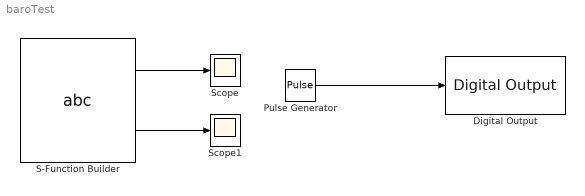
/*
 * Academic License - for use in teaching, academic research, and meeting
 * course requirements at degree granting institutions only.  Not for
 * government, commercial, or other organizational use.
 *
 * File: baroTest.c
 *
 * Code generated for Simulink model 'baroTest'.
 *
 * Model version                  : 1.12
 * Simulink Coder version         : 9.7 (R2022a) 13-Nov-2021
 * C/C++ source code generated on : Fri Apr 22 08:59:31 2022
 *
 * Target selection: ert.tlc
 * Embedded hardware selection: Atmel->AVR
 * Code generation objectives: Unspecified
 * Validation result: Not run
 */

#include "baroTest.h"
#include "rtwtypes.h"
#include "baroTest_private.h"
#include <math.h>

/* Block signals (default storage) */
B_baroTest_T baroTest_B;

/* Block states (default storage) */
DW_baroTest_T baroTest_DW;

/* Real-time model */
static RT_MODEL_baroTest_T baroTest_M_;
RT_MODEL_baroTest_T *const baroTest_M = &baroTest_M_;
static void rate_monotonic_scheduler(void);

/*
 * Set which subrates need to run this base step (base rate always runs).
 * This function must be called prior to calling the model step function
 * in order to remember which rates need to run this base step.  The
 * buffering of events allows for overlapping preemption.
 */
void baroTest_SetEventsForThisBaseStep(boolean_T *eventFlags)
{
  /* Task runs when its counter is zero, computed via rtmStepTask macro */
  eventFlags[1] = ((boolean_T)rtmStepTask(baroTest_M, 1));
}

/*
 *         This function updates active task flag for each subrate
 *         and rate transition flags for tasks that exchange data.
 *         The function assumes rate-monotonic multitasking scheduler.
 *         The function must be called at model base rate so that
 *         the generated code self-manages all its subrates and rate
 *         transition flags.
 */
static void rate_monotonic_scheduler(void)
{
  /* Compute which subrates run during the next base time step.  Subrates
   * are an integer multiple of the base rate counter.  Therefore, the subtask
   * counter is reset when it reaches its limit (zero means run).
   */
  (baroTest_M->Timing.TaskCounters.TID[1])++;
  if ((baroTest_M->Timing.TaskCounters.TID[1]) > 99) {/* Sample time: [0.1s, 0.0s] */
    baroTest_M->Timing.TaskCounters.TID[1] = 0;
  }
}

real_T rt_roundd_snf(real_T u)
{
  real_T y;
  if (fabs(u) < 4.503599627370496E+15) {
    if (u >= 0.5) {
      y = floor(u + 0.5);
    } else if (u > -0.5) {
      y = u * 0.0;
    } else {
      y = ceil(u - 0.5);
    }
  } else {
    y = u;
  }

  return y;
}

/* Model step function for TID0 */
void baroTest_step0(void)              /* Sample time: [0.001s, 0.0s] */
{
  {                                    /* Sample time: [0.001s, 0.0s] */
    rate_monotonic_scheduler();
  }

  /* S-Function (abc): '<Root>/S-Function Builder' */
  abc_Outputs_wrapper(&baroTest_B.P, &baroTest_B.T,
                      &baroTest_DW.SFunctionBuilder_DSTATE);

  /* Update for S-Function (abc): '<Root>/S-Function Builder' */

  /* S-Function "abc_wrapper" Block: <Root>/S-Function Builder */
  abc_Update_wrapper(&baroTest_B.P, &baroTest_B.T,
                     &baroTest_DW.SFunctionBuilder_DSTATE);

  /* Update absolute time */
  /* The "clockTick0" counts the number of times the code of this task has
   * been executed. The absolute time is the multiplication of "clockTick0"
   * and "Timing.stepSize0". Size of "clockTick0" ensures timer will not
   * overflow during the application lifespan selected.
   */
  baroTest_M->Timing.taskTime0 =
    ((time_T)(++baroTest_M->Timing.clockTick0)) * baroTest_M->Timing.stepSize0;
}

/* Model step function for TID1 */
void baroTest_step1(void)              /* Sample time: [0.1s, 0.0s] */
{
  real_T rtb_PulseGenerator;
  uint8_T tmp;

  /* DiscretePulseGenerator: '<Root>/Pulse Generator' */
  rtb_PulseGenerator = (baroTest_DW.clockTickCounter <
                        baroTest_P.PulseGenerator_Duty) &&
    (baroTest_DW.clockTickCounter >= 0L) ? baroTest_P.PulseGenerator_Amp : 0.0;
  if (baroTest_DW.clockTickCounter >= baroTest_P.PulseGenerator_Period - 1.0) {
    baroTest_DW.clockTickCounter = 0L;
  } else {
    baroTest_DW.clockTickCounter++;
  }

  /* End of DiscretePulseGenerator: '<Root>/Pulse Generator' */

  /* MATLABSystem: '<Root>/Digital Output' */
  rtb_PulseGenerator = rt_roundd_snf(rtb_PulseGenerator);
  if (rtb_PulseGenerator < 256.0) {
    if (rtb_PulseGenerator >= 0.0) {
      tmp = (uint8_T)rtb_PulseGenerator;
    } else {
      tmp = 0U;
    }
  } else {
    tmp = MAX_uint8_T;
  }

  writeDigitalPin(13, tmp);

  /* End of MATLABSystem: '<Root>/Digital Output' */

  /* Update absolute time */
  /* The "clockTick1" counts the number of times the code of this task has
   * been executed. The resolution of this integer timer is 0.1, which is the step size
   * of the task. Size of "clockTick1" ensures timer will not overflow during the
   * application lifespan selected.
   */
  baroTest_M->Timing.clockTick1++;
}
